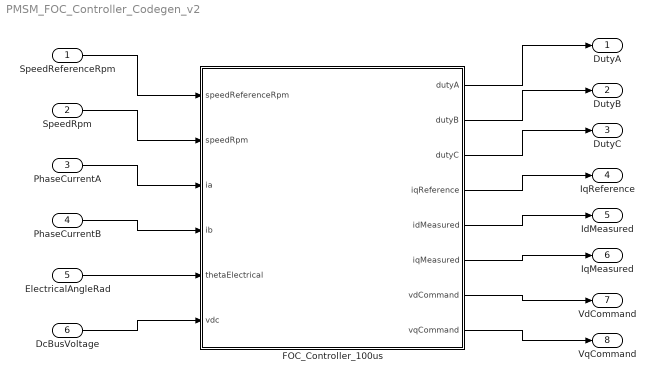
== matlab function PMSM_FOC_Controller_Codegen_v2/FOC_Controller_100us ==
function [dutyA, dutyB, dutyC, iqReference, idMeasured, iqMeasured, vdCommand, vqCommand] = ...
    foc_controller_codegen_core(speedReferenceRpm, speedRpm, ia, ib, thetaElectrical, vdc, FOC_CurrentPeriod, FOC_SpeedPeriod, FOC_PolePairs, FOC_Ld, FOC_Lq, FOC_FluxPM, FOC_KpCurrent, FOC_KiCurrent, FOC_KpSpeed, FOC_KiSpeed, FOC_IqLimit, FOC_VoltageUtilization, FOC_AntiWindupGain, FOC_DutyMin, FOC_DutyMax)
%#codegen
% Code-generation implementation of the basic PMSM FOC controller.

% These states belong to the deployable controller. The generated
% initialize function resets them when the application starts.
persistent speedIntegrator dIntegrator qIntegrator iqReferenceMemory speedDivider
if isempty(speedIntegrator)
    speedIntegrator = single(0.0);
    dIntegrator = single(0.0);
    qIntegrator = single(0.0);
    iqReferenceMemory = single(0.0);
    speedDivider = uint8(9); % Execute the 1 ms speed loop on the first call.
end

vdc = max(vdc, single(1.0));
sqrtThree = single(1.7320508075688772);
inverseSqrtThree = single(0.5773502691896258);
rpmToRadians = single(0.1047197551196598);

% Clarke and Park transforms.
iAlpha = ia;
iBeta = (ia + single(2.0) * ib) * inverseSqrtThree;
cosTheta = cos(thetaElectrical);
sinTheta = sin(thetaElectrical);
idMeasured = cosTheta * iAlpha + sinTheta * iBeta;
iqMeasured = -sinTheta * iAlpha + cosTheta * iBeta;

% The controller step runs at 100 us; execute the speed PI every ten calls.
if speedDivider >= uint8(9)
    speedDivider = uint8(0);
    speedError = (speedReferenceRpm - speedRpm) * rpmToRadians;
    iqUnsaturated = FOC_KpSpeed * speedError + speedIntegrator;
    iqReference = min(max(iqUnsaturated, -FOC_IqLimit), FOC_IqLimit);
    speedIntegrator = speedIntegrator + ...
        FOC_KiSpeed * FOC_SpeedPeriod * speedError + ...
        FOC_AntiWindupGain * (iqReference - iqUnsaturated);
    speedIntegrator = min(max(speedIntegrator, -FOC_IqLimit), FOC_IqLimit);
else
    speedDivider = speedDivider + uint8(1);
    iqReference = iqReferenceMemory;
end
iqReferenceMemory = iqReference;

% Current PI, dq decoupling and back-EMF feed-forward.
omegaElectrical = speedRpm * rpmToRadians * FOC_PolePairs;
dError = -idMeasured;
qError = iqReference - iqMeasured;
vdRaw = FOC_KpCurrent * dError + dIntegrator - ...
    omegaElectrical * FOC_Lq * iqMeasured;
vqRaw = FOC_KpCurrent * qError + qIntegrator + ...
    omegaElectrical * (FOC_Ld * idMeasured + FOC_FluxPM);

voltageLimit = FOC_VoltageUtilization * vdc * inverseSqrtThree;
magnitudeSquared = vdRaw * vdRaw + vqRaw * vqRaw;
if magnitudeSquared > voltageLimit * voltageLimit
    voltageScale = voltageLimit / sqrt(magnitudeSquared);
else
    voltageScale = single(1.0);
end
vdCommand = vdRaw * voltageScale;
vqCommand = vqRaw * voltageScale;

dIntegrator = dIntegrator + FOC_KiCurrent * FOC_CurrentPeriod * dError + ...
    FOC_AntiWindupGain * (vdCommand - vdRaw);
qIntegrator = qIntegrator + FOC_KiCurrent * FOC_CurrentPeriod * qError + ...
    FOC_AntiWindupGain * (vqCommand - vqRaw);
dIntegrator = min(max(dIntegrator, -voltageLimit), voltageLimit);
qIntegrator = min(max(qIntegrator, -voltageLimit), voltageLimit);

% Inverse Park and centered SVPWM duty ratios.
vAlpha = cosTheta * vdCommand - sinTheta * vqCommand;
vBeta = sinTheta * vdCommand + cosTheta * vqCommand;
va = vAlpha;
vb = single(-0.5) * vAlpha + single(0.5) * sqrtThree * vBeta;
vc = single(-0.5) * vAlpha - single(0.5) * sqrtThree * vBeta;
maximumPhase = max(va, max(vb, vc));
minimumPhase = min(va, min(vb, vc));
commonMode = single(-0.5) * (maximumPhase + minimumPhase);
dutyA = single(0.5) + (va + commonMode) / vdc;
dutyB = single(0.5) + (vb + commonMode) / vdc;
dutyC = single(0.5) + (vc + commonMode) / vdc;
dutyA = min(max(dutyA, FOC_DutyMin), FOC_DutyMax);
dutyB = min(max(dutyB, FOC_DutyMin), FOC_DutyMax);
dutyC = min(max(dutyC, FOC_DutyMin), FOC_DutyMax);
end

/*
 * File: PMSM_FOC_Controller_Codegen_v2.c
 *
 * Code generated for Simulink model 'PMSM_FOC_Controller_Codegen_v2'.
 *
 * Model version                  : 1.1
 * Simulink Coder version         : 24.1 (R2024a) 19-Nov-2023
 * C/C++ source code generated on : Wed Aug 26 23:29:48 2026
 *
 * Target selection: ert.tlc
 * Embedded hardware selection: Intel->x86-64 (Windows64)
 * Code generation objectives: Unspecified
 * Validation result: Not run
 */

#include "PMSM_FOC_Controller_Codegen_v2.h"
#include <math.h>
#include "rtwtypes.h"

/* Exported block parameters */
real32_T FOC_AntiWindupGain = 0.2F;    /* Variable: FOC_AntiWindupGain
                                        * Referenced by: '<Root>/FOC_Controller_100us'
                                        */
real32_T FOC_CurrentPeriod = 0.0001F;  /* Variable: FOC_CurrentPeriod
                                        * Referenced by: '<Root>/FOC_Controller_100us'
                                        */
real32_T FOC_DutyMax = 0.98F;          /* Variable: FOC_DutyMax
                                        * Referenced by: '<Root>/FOC_Controller_100us'
                                        */
real32_T FOC_DutyMin = 0.02F;          /* Variable: FOC_DutyMin
                                        * Referenced by: '<Root>/FOC_Controller_100us'
                                        */
real32_T FOC_FluxPM = 0.05F;           /* Variable: FOC_FluxPM
                                        * Referenced by: '<Root>/FOC_Controller_100us'
                                        */
real32_T FOC_IqLimit = 8.0F;           /* Variable: FOC_IqLimit
                                        * Referenced by: '<Root>/FOC_Controller_100us'
                                        */
real32_T FOC_KiCurrent = 500.0F;       /* Variable: FOC_KiCurrent
                                        * Referenced by: '<Root>/FOC_Controller_100us'
                                        */
real32_T FOC_KiSpeed = 3.0F;           /* Variable: FOC_KiSpeed
                                        * Referenced by: '<Root>/FOC_Controller_100us'
                                        */
real32_T FOC_KpCurrent = 1.0F;         /* Variable: FOC_KpCurrent
                                        * Referenced by: '<Root>/FOC_Controller_100us'
                                        */
real32_T FOC_KpSpeed = 0.2F;           /* Variable: FOC_KpSpeed
                                        * Referenced by: '<Root>/FOC_Controller_100us'
                                        */
real32_T FOC_Ld = 0.001F;              /* Variable: FOC_Ld
                                        * Referenced by: '<Root>/FOC_Controller_100us'
                                        */
real32_T FOC_Lq = 0.001F;              /* Variable: FOC_Lq
                                        * Referenced by: '<Root>/FOC_Controller_100us'
                                        */
real32_T FOC_PolePairs = 4.0F;         /* Variable: FOC_PolePairs
                                        * Referenced by: '<Root>/FOC_Controller_100us'
                                        */
real32_T FOC_SpeedPeriod = 0.001F;     /* Variable: FOC_SpeedPeriod
                                        * Referenced by: '<Root>/FOC_Controller_100us'
                                        */
real32_T FOC_VoltageUtilization = 0.95F;/* Variable: FOC_VoltageUtilization
                                         * Referenced by: '<Root>/FOC_Controller_100us'
                                         */

/* Block states (default storage) */
DW_PMSM_FOC_Controller_Codege_T PMSM_FOC_Controller_Codegen__DW;

/* External inputs (root inport signals with default storage) */
ExtU_PMSM_FOC_Controller_Code_T PMSM_FOC_Controller_Codegen_v_U;

/* External outputs (root outports fed by signals with default storage) */
ExtY_PMSM_FOC_Controller_Code_T PMSM_FOC_Controller_Codegen_v_Y;

/* Real-time model */
static RT_MODEL_PMSM_FOC_Controller__T PMSM_FOC_Controller_Codegen__M_;
RT_MODEL_PMSM_FOC_Controller__T *const PMSM_FOC_Controller_Codegen__M =
  &PMSM_FOC_Controller_Codegen__M_;

/* Model step function */
void PMSM_FOC_Controller_Codegen_v2_step(void)
{
  real32_T cosTheta;
  real32_T iBeta;
  real32_T iqUnsaturated;
  real32_T magnitudeSquared;
  real32_T omegaElectrical;
  real32_T sinTheta;
  real32_T vdc;
  real32_T voltageLimit;

  /* MATLAB Function: '<Root>/FOC_Controller_100us' incorporates:
   *  Inport: '<Root>/DcBusVoltage'
   *  Inport: '<Root>/ElectricalAngleRad'
   *  Inport: '<Root>/PhaseCurrentA'
   *  Inport: '<Root>/PhaseCurrentB'
   *  Inport: '<Root>/SpeedReferenceRpm'
   *  Inport: '<Root>/SpeedRpm'
   */
  vdc = fmaxf(PMSM_FOC_Controller_Codegen_v_U.DcBusVoltage, 1.0F);
  iBeta = (2.0F * PMSM_FOC_Controller_Codegen_v_U.PhaseCurrentB +
           PMSM_FOC_Controller_Codegen_v_U.PhaseCurrentA) * 0.577350259F;
  cosTheta = cosf(PMSM_FOC_Controller_Codegen_v_U.ElectricalAngleRad);
  sinTheta = sinf(PMSM_FOC_Controller_Codegen_v_U.ElectricalAngleRad);
  PMSM_FOC_Controller_Codegen_v_Y.IdMeasured = cosTheta *
    PMSM_FOC_Controller_Codegen_v_U.PhaseCurrentA + sinTheta * iBeta;
  PMSM_FOC_Controller_Codegen_v_Y.IqMeasured = -sinTheta *
    PMSM_FOC_Controller_Codegen_v_U.PhaseCurrentA + cosTheta * iBeta;
  if (PMSM_FOC_Controller_Codegen__DW.speedDivider >= 9) {
    PMSM_FOC_Controller_Codegen__DW.speedDivider = 0U;
    iBeta = (PMSM_FOC_Controller_Codegen_v_U.SpeedReferenceRpm -
             PMSM_FOC_Controller_Codegen_v_U.SpeedRpm) * 0.104719758F;
    iqUnsaturated = FOC_KpSpeed * iBeta +
      PMSM_FOC_Controller_Codegen__DW.speedIntegrator;
    PMSM_FOC_Controller_Codegen__DW.iqReferenceMemory = fminf(fmaxf
      (iqUnsaturated, -FOC_IqLimit), FOC_IqLimit);
    PMSM_FOC_Controller_Codegen__DW.speedIntegrator = (FOC_KiSpeed *
      FOC_SpeedPeriod * iBeta + PMSM_FOC_Controller_Codegen__DW.speedIntegrator)
      + (PMSM_FOC_Controller_Codegen__DW.iqReferenceMemory - iqUnsaturated) *
      FOC_AntiWindupGain;
    PMSM_FOC_Controller_Codegen__DW.speedIntegrator = fminf(fmaxf
      (PMSM_FOC_Controller_Codegen__DW.speedIntegrator, -FOC_IqLimit),
      FOC_IqLimit);
  } else {
    PMSM_FOC_Controller_Codegen__DW.speedDivider++;
  }

  omegaElectrical = PMSM_FOC_Controller_Codegen_v_U.SpeedRpm * 0.104719758F *
    FOC_PolePairs;
  iBeta = PMSM_FOC_Controller_Codegen__DW.iqReferenceMemory -
    PMSM_FOC_Controller_Codegen_v_Y.IqMeasured;
  iqUnsaturated = (FOC_KpCurrent * -PMSM_FOC_Controller_Codegen_v_Y.IdMeasured +
                   PMSM_FOC_Controller_Codegen__DW.dIntegrator) -
    omegaElectrical * FOC_Lq * PMSM_FOC_Controller_Codegen_v_Y.IqMeasured;
  omegaElectrical = (FOC_Ld * PMSM_FOC_Controller_Codegen_v_Y.IdMeasured +
                     FOC_FluxPM) * omegaElectrical + (FOC_KpCurrent * iBeta +
    PMSM_FOC_Controller_Codegen__DW.qIntegrator);
  voltageLimit = FOC_VoltageUtilization * vdc * 0.577350259F;
  magnitudeSquared = iqUnsaturated * iqUnsaturated + omegaElectrical *
    omegaElectrical;
  if (magnitudeSquared > voltageLimit * voltageLimit) {
    magnitudeSquared = voltageLimit / sqrtf(magnitudeSquared);
  } else {
    magnitudeSquared = 1.0F;
  }

  PMSM_FOC_Controller_Codegen_v_Y.VdCommand = iqUnsaturated * magnitudeSquared;
  PMSM_FOC_Controller_Codegen_v_Y.VqCommand = omegaElectrical * magnitudeSquared;
  magnitudeSquared = FOC_KiCurrent * FOC_CurrentPeriod;
  PMSM_FOC_Controller_Codegen__DW.dIntegrator = (magnitudeSquared *
    -PMSM_FOC_Controller_Codegen_v_Y.IdMeasured +
    PMSM_FOC_Controller_Codegen__DW.dIntegrator) +
    (PMSM_FOC_Controller_Codegen_v_Y.VdCommand - iqUnsaturated) *
    FOC_AntiWindupGain;
  PMSM_FOC_Controller_Codegen__DW.qIntegrator = (magnitudeSquared * iBeta +
    PMSM_FOC_Controller_Codegen__DW.qIntegrator) +
    (PMSM_FOC_Controller_Codegen_v_Y.VqCommand - omegaElectrical) *
    FOC_AntiWindupGain;
  PMSM_FOC_Controller_Codegen__DW.dIntegrator = fminf(fmaxf
    (PMSM_FOC_Controller_Codegen__DW.dIntegrator, -voltageLimit), voltageLimit);
  PMSM_FOC_Controller_Codegen__DW.qIntegrator = fminf(fmaxf
    (PMSM_FOC_Controller_Codegen__DW.qIntegrator, -voltageLimit), voltageLimit);
  iBeta = cosTheta * PMSM_FOC_Controller_Codegen_v_Y.VdCommand - sinTheta *
    PMSM_FOC_Controller_Codegen_v_Y.VqCommand;
  sinTheta = sinTheta * PMSM_FOC_Controller_Codegen_v_Y.VdCommand + cosTheta *
    PMSM_FOC_Controller_Codegen_v_Y.VqCommand;
  cosTheta = -0.5F * iBeta + 0.866025388F * sinTheta;
  sinTheta = -0.5F * iBeta - 0.866025388F * sinTheta;
  iqUnsaturated = (fmaxf(iBeta, fmaxf(cosTheta, sinTheta)) + fminf(iBeta, fminf
    (cosTheta, sinTheta))) * -0.5F;

  /* Outport: '<Root>/DutyA' incorporates:
   *  MATLAB Function: '<Root>/FOC_Controller_100us'
   */
  PMSM_FOC_Controller_Codegen_v_Y.DutyA = fminf(fmaxf((iBeta + iqUnsaturated) /
    vdc + 0.5F, FOC_DutyMin), FOC_DutyMax);

  /* Outport: '<Root>/DutyB' incorporates:
   *  MATLAB Function: '<Root>/FOC_Controller_100us'
   */
  PMSM_FOC_Controller_Codegen_v_Y.DutyB = fminf(fmaxf((cosTheta + iqUnsaturated)
    / vdc + 0.5F, FOC_DutyMin), FOC_DutyMax);

  /* Outport: '<Root>/DutyC' incorporates:
   *  MATLAB Function: '<Root>/FOC_Controller_100us'
   */
  PMSM_FOC_Controller_Codegen_v_Y.DutyC = fminf(fmaxf((sinTheta + iqUnsaturated)
    / vdc + 0.5F, FOC_DutyMin), FOC_DutyMax);

  /* Outport: '<Root>/IqReference' incorporates:
   *  MATLAB Function: '<Root>/FOC_Controller_100us'
   */
  PMSM_FOC_Controller_Codegen_v_Y.IqReference =
    PMSM_FOC_Controller_Codegen__DW.iqReferenceMemory;
}
